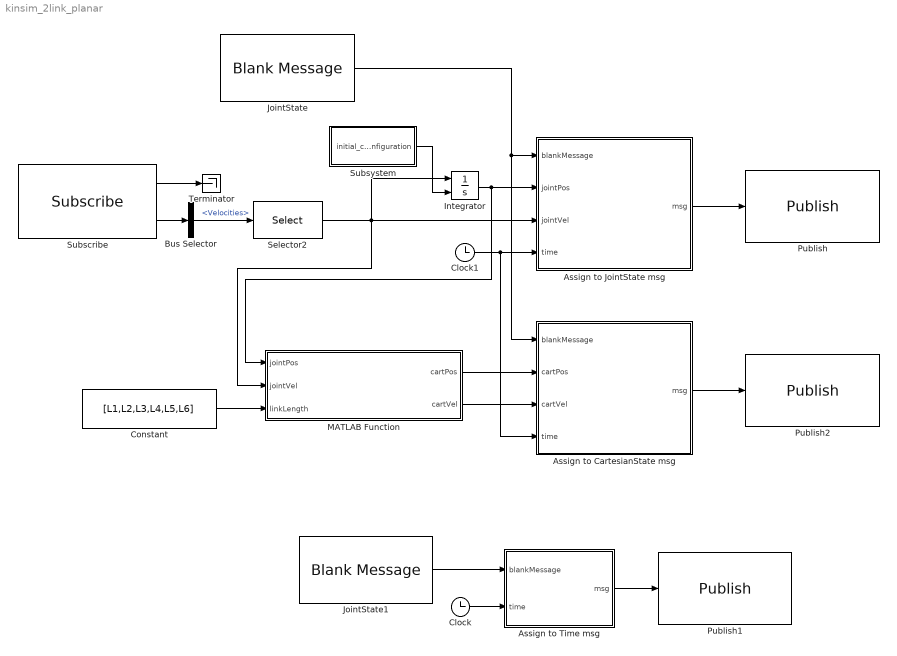
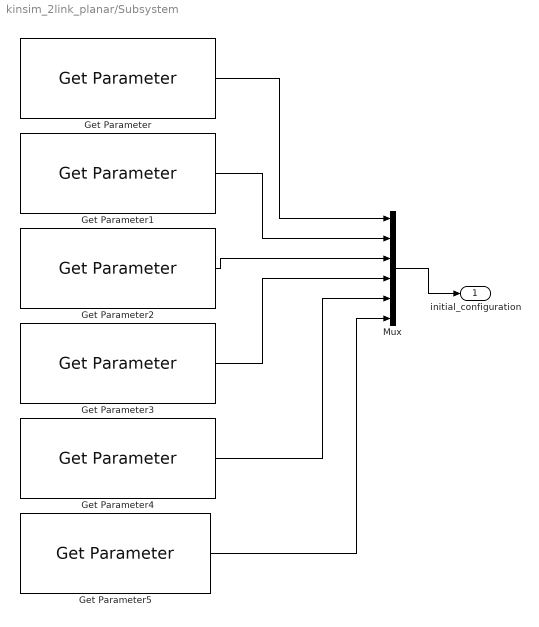
== matlab function kinsim_2link_planar/Assign to Time msg ==
function msg = assign_Time(blankMessage,time)
%#codegen

% Assign the output message to be the same with input blank message
msg = blankMessage;

% Convert and set time
msg.Clock_.Sec  = fix(time);
msg.Clock_.Nsec = fix((time-fix(time))*1e9);

== matlab function kinsim_2link_planar/Assign to JointState msg ==
function msg = assign_JointState(blankMessage,jointPos,jointVel,time)
%#codegen

% Assign the output message to be the same with input blank message
msg = blankMessage;

% Initialize time stamp
msg.Header.Stamp.Sec  = fix(time);
msg.Header.Stamp.Nsec = fix((time-fix(time))*1e9);

% Set the number of strings in the string array, and joint positions/velocities in the position/velocity array
numJoints = length(jointPos);
msg.Name_SL_Info.CurrentLength = uint32(numJoints);
msg.Position_SL_Info.CurrentLength = uint32(numJoints);
msg.Velocity_SL_Info.CurrentLength = uint32(numJoints);

% Set the individual components in the message arrays
strArrayToAssign = {'edo_joint_1', 'edo_joint_2', 'edo_joint_3', 'edo_joint_4', 'edo_joint_5', 'edo_joint_6'};

for idx=1:numJoints
    str = strArrayToAssign{idx};
    strLength = length(str);
    msg.Name(idx).Data(1:strLength) = uint8(str);
    msg.Name(idx).Data_SL_Info.CurrentLength = uint32(strLength);

    msg.Position(idx) = jointPos(idx);
    msg.Velocity(idx) = jointVel(idx);
end

== matlab function kinsim_2link_planar/MATLAB Function ==
function [cartPos, cartVel] = forward_kinematics_2link(jointPos,jointVel,linkLength)

cartPos = zeros(1,3);
cartVel = zeros(1,3);

L1 = linkLength(1);
L2 = linkLength(2);
L3 = linkLength(3);
L4 = linkLength(4);
L5 = linkLength(5);
L6 = linkLength(6);
q1 = jointPos(1);
q2 = jointPos(2);
q3 = jointPos(3);
q4 = jointPos(4);
q5 = jointPos(5);
q6 = jointPos(6);
qv1 = jointVel(1);
qv2 = jointVel(2);
qv3 = jointVel(3);
qv4 = jointVel(4);
qv5 = jointVel(5);
qv6 = jointVel(6);

% cartPos(1) = L1*cos(q1)+L2*cos(q1+q2)+L3*cos(q1+q2+q3)+L4*cos(q1+q2+q3+q4)+L5*cos(q1+q2+q3+q4+q5)+L6*cos(q1+q2+q3+q4+q5+q6);
% cartPos(2) = L1*sin(q1)+L2*sin(q1+q2)+L3*sin(q1+q2+q3)+L4*sin(q1+q2+q3+q4)+L5*sin(q1+q2+q3+q4+q5)+L6*sin(q1+q2+q3+q4+q5+q6);
% cartVel(1) = -L1*qv1*sin(q1)-L2*(qv1+qv2)*sin(q1+q2)-L3*(qv1+qv2+qv3)*sin(q1+q2+q3)-L4*(qv1+qv2+qv3+qv4)*sin(q1+q2+q3+q4)-L5*(qv1+qv2+qv3+qv4+qv5)*sin(q1+q2+q3+q4+q5)-L6*(qv1+qv2+qv3+qv4+qv5+qv6)*sin(q1+q2+q3+q4+q5+q6);
% cartVel(2) = L1*qv1*cos(q1)+L2*(qv1+qv2)*cos(q1+q2)+L3*(qv1+qv2+qv3)*cos(q1+q2+q3)+L4*(qv1+qv2+qv3+qv4)*cos(q1+q2+q3+q4)+L5*(qv1+qv2+qv3+qv4+qv5)*cos(q1+q2+q3+q4+q5)+L6*(qv1+qv2+qv3+qv4+qv5+qv6)*cos(q1+q2+q3+q4+q5+q6);

cartPos(1) = (L2*cos(q2)+L3*cos(q3)+L4*cos(q4)+L5*cos(q5)+L6*cos(q6))*cos(q1)
cartPos(2) = (L2*cos(q2)+L3*cos(q3)+L4*cos(q4)+L5*cos(q5)+L6*cos(q6))*sin(q1)
cartPos(3) = L1+L2*sin(q2)+L3*sin(q3)+L4*sin(q4)*L5*sin(q5)+L6*sin(q6)

cartVel(1) = -(L2*cos(q2)+L3*cos(q3)+L4*cos(q4)+L5*cos(q5)+L6*cos(q6))*sin(q1)-(L2*sin(q2)+L3*sin(q3)+L4*sin(q4)+L5*sin(q5)+L6*sin(q6))*cos(q1)
cartVel(2) = (L2*cos(q2)+L3*cos(q3)+L4*cos(q4)+L5*cos(q5)+L6*cos(q6))*cos(q1)-(L2*sin(q2)+L3*sin(q3)+L4*sin(q4)+L5*sin(q5)+L6*sin(q6))*sin(q1)
cartVel(3) = L1+L2*cos(q2)+L3*cos(q3)+L4*cos(q4)*L5*cos(q5)+L6*cos(q6)

== matlab function kinsim_2link_planar/Assign to CartesianState msg ==
function msg = assign_CartesianState(blankMessage,cartPos,cartVel,time)
%#codegen

% Assign the output message to be the same with input blank message
msg = blankMessage;

% Initialize time stamp
msg.Header.Stamp.Sec  = fix(time);
msg.Header.Stamp.Nsec = fix((time-fix(time))*1e9);

% Set the number of strings in the string array, and joint positions/velocities in the position/velocity array
numCoordinates = length(cartPos);
msg.Name_SL_Info.CurrentLength = uint32(numCoordinates);
msg.Position_SL_Info.CurrentLength = uint32(numCoordinates);
msg.Velocity_SL_Info.CurrentLength = uint32(numCoordinates);

% Set the individual components in the message arrays
strArrayToAssign = {'edo_joint_1', 'edo_joint_2', 'edo_joint_3', 'edo_joint_4', 'edo_joint_5', 'edo_joint_6'};

for idx=1:numCoordinates
    str = strArrayToAssign{idx};
    strLength = length(str);
    msg.Name(idx).Data(1:strLength) = uint8(str);
    msg.Name(idx).Data_SL_Info.CurrentLength = uint32(strLength);

    msg.Position(idx) = cartPos(idx);
    msg.Velocity(idx) = cartVel(idx);
end

//
// Academic License - for use in teaching, academic research, and meeting
// course requirements at degree granting institutions only.  Not for
// government, commercial, or other organizational use.
//
// File: kinsim_2link_planar.cpp
//
// Code generated for Simulink model 'kinsim_2link_planar'.
//
// Model version                  : 1.127
// Simulink Coder version         : 9.3 (R2020a) 18-Nov-2019
// C/C++ source code generated on : Sun May 17 14:56:55 2020
//
// Target selection: ert.tlc
// Embedded hardware selection: Generic->Unspecified (assume 32-bit Generic)
// Code generation objectives: Unspecified
// Validation result: Not run
//
#include "kinsim_2link_planar.h"
#include "kinsim_2link_planar_private.h"

// Block signals (default storage)
B_kinsim_2link_planar_T kinsim_2link_planar_B;

// Continuous states
X_kinsim_2link_planar_T kinsim_2link_planar_X;

// Block states (default storage)
DW_kinsim_2link_planar_T kinsim_2link_planar_DW;

// Real-time model
RT_MODEL_kinsim_2link_planar_T kinsim_2link_planar_M_ =
  RT_MODEL_kinsim_2link_planar_T();
RT_MODEL_kinsim_2link_planar_T *const kinsim_2link_planar_M =
  &kinsim_2link_planar_M_;

// Forward declaration for local functions
static void kinsim_2link_pl_SystemCore_step(boolean_T *varargout_1, real_T
  varargout_2_Positions[128], uint32_T *varargout_2_Positions_SL_Info_C,
  uint32_T *varargout_2_Positions_SL_Info_R, real_T varargout_2_Velocities[128],
  uint32_T *varargout_2_Velocities_SL_Info_, uint32_T
  *varargout_2_Velocities_SL_Inf_0, real_T varargout_2_Accelerations[128],
  uint32_T *varargout_2_Accelerations_SL_In, uint32_T
  *varargout_2_Accelerations_SL__0, real_T varargout_2_Effort[128], uint32_T
  *varargout_2_Effort_SL_Info_Curr, uint32_T *varargout_2_Effort_SL_Info_Rece,
  real_T *varargout_2_TimeFromStart_Sec, real_T *varargout_2_TimeFromStart_Nsec);
static void matlabCodegenHandle_matlab_li5a(ros_slros_internal_block_GetP_T *obj);
static void matlabCodegenHandle_matlabC_li5(ros_slros_internal_block_Subs_T *obj);
static void matlabCodegenHandle_matlabCodeg(ros_slros_internal_block_Publ_T *obj);

//
// This function updates continuous states using the ODE3 fixed-step
// solver algorithm
//
static void rt_ertODEUpdateContinuousStates(RTWSolverInfo *si )
{
  // Solver Matrices
  static const real_T rt_ODE3_A[3] = {
    1.0/2.0, 3.0/4.0, 1.0
  };

  static const real_T rt_ODE3_B[3][3] = {
    { 1.0/2.0, 0.0, 0.0 },

    { 0.0, 3.0/4.0, 0.0 },

    { 2.0/9.0, 1.0/3.0, 4.0/9.0 }
  };

  time_T t = rtsiGetT(si);
  time_T tnew = rtsiGetSolverStopTime(si);
  time_T h = rtsiGetStepSize(si);
  real_T *x = rtsiGetContStates(si);
  ODE3_IntgData *id = static_cast<ODE3_IntgData *>(rtsiGetSolverData(si));
  real_T *y = id->y;
  real_T *f0 = id->f[0];
  real_T *f1 = id->f[1];
  real_T *f2 = id->f[2];
  real_T hB[3];
  int_T i;
  int_T nXc = 6;
  rtsiSetSimTimeStep(si,MINOR_TIME_STEP);

  // Save the state values at time t in y, we'll use x as ynew.
  (void) memcpy(y, x,
                static_cast<uint_T>(nXc)*sizeof(real_T));

  // Assumes that rtsiSetT and ModelOutputs are up-to-date
  // f0 = f(t,y)
  rtsiSetdX(si, f0);
  kinsim_2link_planar_derivatives();

  // f(:,2) = feval(odefile, t + hA(1), y + f*hB(:,1), args(:)(*));
  hB[0] = h * rt_ODE3_B[0][0];
  for (i = 0; i < nXc; i++) {
    x[i] = y[i] + (f0[i]*hB[0]);
  }

  rtsiSetT(si, t + h*rt_ODE3_A[0]);
  rtsiSetdX(si, f1);
  kinsim_2link_planar_step();
  kinsim_2link_planar_derivatives();

  // f(:,3) = feval(odefile, t + hA(2), y + f*hB(:,2), args(:)(*));
  for (i = 0; i <= 1; i++) {
    hB[i] = h * rt_ODE3_B[1][i];
  }

  for (i = 0; i < nXc; i++) {
    x[i] = y[i] + (f0[i]*hB[0] + f1[i]*hB[1]);
  }

  rtsiSetT(si, t + h*rt_ODE3_A[1]);
  rtsiSetdX(si, f2);
  kinsim_2link_planar_step();
  kinsim_2link_planar_derivatives();

  // tnew = t + hA(3);
  // ynew = y + f*hB(:,3);
  for (i = 0; i <= 2; i++) {
    hB[i] = h * rt_ODE3_B[2][i];
  }

  for (i = 0; i < nXc; i++) {
    x[i] = y[i] + (f0[i]*hB[0] + f1[i]*hB[1] + f2[i]*hB[2]);
  }

  rtsiSetT(si, tnew);
  rtsiSetSimTimeStep(si,MAJOR_TIME_STEP);
}

static void kinsim_2link_pl_SystemCore_step(boolean_T *varargout_1, real_T
  varargout_2_Positions[128], uint32_T *varargout_2_Positions_SL_Info_C,
  uint32_T *varargout_2_Positions_SL_Info_R, real_T varargout_2_Velocities[128],
  uint32_T *varargout_2_Velocities_SL_Info_, uint32_T
  *varargout_2_Velocities_SL_Inf_0, real_T varargout_2_Accelerations[128],
  uint32_T *varargout_2_Accelerations_SL_In, uint32_T
  *varargout_2_Accelerations_SL__0, real_T varargout_2_Effort[128], uint32_T
  *varargout_2_Effort_SL_Info_Curr, uint32_T *varargout_2_Effort_SL_Info_Rece,
  real_T *varargout_2_TimeFromStart_Sec, real_T *varargout_2_TimeFromStart_Nsec)
{
  *varargout_1 = Sub_kinsim_2link_planar_16.getLatestMessage
    (&kinsim_2link_planar_B.b_varargout_2);
  *varargout_2_Positions_SL_Info_C =
    kinsim_2link_planar_B.b_varargout_2.Positions_SL_Info.CurrentLength;
  *varargout_2_Positions_SL_Info_R =
    kinsim_2link_planar_B.b_varargout_2.Positions_SL_Info.ReceivedLength;
  *varargout_2_Velocities_SL_Info_ =
    kinsim_2link_planar_B.b_varargout_2.Velocities_SL_Info.CurrentLength;
  *varargout_2_Velocities_SL_Inf_0 =
    kinsim_2link_planar_B.b_varargout_2.Velocities_SL_Info.ReceivedLength;
  *varargout_2_Accelerations_SL_In =
    kinsim_2link_planar_B.b_varargout_2.Accelerations_SL_Info.CurrentLength;
  *varargout_2_Accelerations_SL__0 =
    kinsim_2link_planar_B.b_varargout_2.Accelerations_SL_Info.ReceivedLength;
  memcpy(&varargout_2_Positions[0],
         &kinsim_2link_planar_B.b_varargout_2.Positions[0], sizeof(real_T) << 7U);
  memcpy(&varargout_2_Velocities[0],
         &kinsim_2link_planar_B.b_varargout_2.Velocities[0], sizeof(real_T) <<
         7U);
  memcpy(&varargout_2_Accelerations[0],
         &kinsim_2link_planar_B.b_varargout_2.Accelerations[0], sizeof(real_T) <<
         7U);
  memcpy(&varargout_2_Effort[0], &kinsim_2link_planar_B.b_varargout_2.Effort[0],
         sizeof(real_T) << 7U);
  *varargout_2_Effort_SL_Info_Curr =
    kinsim_2link_planar_B.b_varargout_2.Effort_SL_Info.CurrentLength;
  *varargout_2_Effort_SL_Info_Rece =
    kinsim_2link_planar_B.b_varargout_2.Effort_SL_Info.ReceivedLength;
  *varargout_2_TimeFromStart_Sec =
    kinsim_2link_planar_B.b_varargout_2.TimeFromStart.Sec;
  *varargout_2_TimeFromStart_Nsec =
    kinsim_2link_planar_B.b_varargout_2.TimeFromStart.Nsec;
}

static void matlabCodegenHandle_matlab_li5a(ros_slros_internal_block_GetP_T *obj)
{
  if (!obj->matlabCodegenIsDeleted) {
    obj->matlabCodegenIsDeleted = true;
  }
}

static void matlabCodegenHandle_matlabC_li5(ros_slros_internal_block_Subs_T *obj)
{
  if (!obj->matlabCodegenIsDeleted) {
    obj->matlabCodegenIsDeleted = true;
  }
}

static void matlabCodegenHandle_matlabCodeg(ros_slros_internal_block_Publ_T *obj)
{
  if (!obj->matlabCodegenIsDeleted) {
    obj->matlabCodegenIsDeleted = true;
  }
}

// Model step function
void kinsim_2link_planar_step(void)
{
  uint32_T b_varargout_2_Positions_SL_Info;
  uint32_T b_varargout_2_Positions_SL_In_0;
  uint32_T b_varargout_2_Velocities_SL_Inf;
  uint32_T b_varargout_2_Velocities_SL_I_0;
  uint32_T b_varargout_2_Accelerations_SL_;
  uint32_T b_varargout_2_Accelerations_S_0;
  uint32_T b_varargout_2_Effort_SL_Info_Cu;
  uint32_T b_varargout_2_Effort_SL_Info_Re;
  boolean_T b_varargout_1;
  int32_T i;
  real_T tmp;
  real_T tmp_0;
  real_T tmp_1;
  static const char_T h[11] = { 'e', 'd', 'o', '_', 'j', 'o', 'i', 'n', 't', '_',
    '1' };

  static const char_T i_0[11] = { 'e', 'd', 'o', '_', 'j', 'o', 'i', 'n', 't',
    '_', '2' };

  static const char_T j[11] = { 'e', 'd', 'o', '_', 'j', 'o', 'i', 'n', 't', '_',
    '3' };

  static const char_T k[11] = { 'e', 'd', 'o', '_', 'j', 'o', 'i', 'n', 't', '_',
    '4' };

  static const char_T l[11] = { 'e', 'd', 'o', '_', 'j', 'o', 'i', 'n', 't', '_',
    '5' };

  static const char_T m[11] = { 'e', 'd', 'o', '_', 'j', 'o', 'i', 'n', 't', '_',
    '6' };

  if (rtmIsMajorTimeStep(kinsim_2link_planar_M)) {
    // set solver stop time
    rtsiSetSolverStopTime(&kinsim_2link_planar_M->solverInfo,
                          ((kinsim_2link_planar_M->Timing.clockTick0+1)*
      kinsim_2link_planar_M->Timing.stepSize0));
  }                                    // end MajorTimeStep

  // Update absolute time of base rate at minor time step
  if (rtmIsMinorTimeStep(kinsim_2link_planar_M)) {
    kinsim_2link_planar_M->Timing.t[0] = rtsiGetT
      (&kinsim_2link_planar_M->solverInfo);
  }

  // MATLABSystem: '<S11>/Get Parameter'
  ParamGet_kinsim_2link_planar_61.get_parameter(&kinsim_2link_planar_B.value);

  // MATLABSystem: '<S11>/Get Parameter1'
  ParamGet_kinsim_2link_planar_65.get_parameter(&kinsim_2link_planar_B.value_m);

  // MATLABSystem: '<S11>/Get Parameter2'
  ParamGet_kinsim_2link_planar_81.get_parameter(&kinsim_2link_planar_B.value_c);

  // MATLABSystem: '<S11>/Get Parameter3'
  ParamGet_kinsim_2link_planar_82.get_parameter(&kinsim_2link_planar_B.value_k);

  // MATLABSystem: '<S11>/Get Parameter4'
  ParamGet_kinsim_2link_planar_83.get_parameter(&kinsim_2link_planar_B.value_cx);

  // MATLABSystem: '<S11>/Get Parameter5'
  ParamGet_kinsim_2link_planar_84.get_parameter(&kinsim_2link_planar_B.value_b);

  // Integrator: '<Root>/Integrator' incorporates:
  //   MATLABSystem: '<S11>/Get Parameter'
  //   MATLABSystem: '<S11>/Get Parameter1'
  //   MATLABSystem: '<S11>/Get Parameter2'
  //   MATLABSystem: '<S11>/Get Parameter3'
  //   MATLABSystem: '<S11>/Get Parameter4'
  //   MATLABSystem: '<S11>/Get Parameter5'

  if (kinsim_2link_planar_DW.Integrator_IWORK != 0) {
    kinsim_2link_planar_X.Integrator_CSTATE[0] = kinsim_2link_planar_B.value;
    kinsim_2link_planar_X.Integrator_CSTATE[1] = kinsim_2link_planar_B.value_m;
    kinsim_2link_planar_X.Integrator_CSTATE[2] = kinsim_2link_planar_B.value_c;
    kinsim_2link_planar_X.Integrator_CSTATE[3] = kinsim_2link_planar_B.value_k;
    kinsim_2link_planar_X.Integrator_CSTATE[4] = kinsim_2link_planar_B.value_cx;
    kinsim_2link_planar_X.Integrator_CSTATE[5] = kinsim_2link_planar_B.value_b;
  }

  if (rtmIsMajorTimeStep(kinsim_2link_planar_M)) {
    // Outputs for Atomic SubSystem: '<Root>/Subscribe'
    // MATLABSystem: '<S10>/SourceBlock' incorporates:
    //   Inport: '<S12>/In1'

    kinsim_2link_pl_SystemCore_step(&b_varargout_1,
      kinsim_2link_planar_B.b_varargout_2_Positions,
      &b_varargout_2_Positions_SL_Info, &b_varargout_2_Positions_SL_In_0,
      kinsim_2link_planar_B.b_varargout_2_Velocities,
      &b_varargout_2_Velocities_SL_Inf, &b_varargout_2_Velocities_SL_I_0,
      kinsim_2link_planar_B.b_varargout_2_Accelerations,
      &b_varargout_2_Accelerations_SL_, &b_varargout_2_Accelerations_S_0,
      kinsim_2link_planar_B.b_varargout_2_Effort,
      &b_varargout_2_Effort_SL_Info_Cu, &b_varargout_2_Effort_SL_Info_Re,
      &kinsim_2link_planar_B.value, &kinsim_2link_planar_B.value_m);

    // Outputs for Enabled SubSystem: '<S10>/Enabled Subsystem' incorporates:
    //   EnablePort: '<S12>/Enable'

    if (b_varargout_1) {
      kinsim_2link_planar_B.In1.Positions_SL_Info.CurrentLength =
        b_varargout_2_Positions_SL_Info;
      kinsim_2link_planar_B.In1.Positions_SL_Info.ReceivedLength =
        b_varargout_2_Positions_SL_In_0;
      kinsim_2link_planar_B.In1.Velocities_SL_Info.CurrentLength =
        b_varargout_2_Velocities_SL_Inf;
      kinsim_2link_planar_B.In1.Velocities_SL_Info.ReceivedLength =
        b_varargout_2_Velocities_SL_I_0;
      kinsim_2link_planar_B.In1.Accelerations_SL_Info.CurrentLength =
        b_varargout_2_Accelerations_SL_;
      kinsim_2link_planar_B.In1.Accelerations_SL_Info.ReceivedLength =
        b_varargout_2_Accelerations_S_0;
      memcpy(&kinsim_2link_planar_B.In1.Positions[0],
             &kinsim_2link_planar_B.b_varargout_2_Positions[0], sizeof(real_T) <<
             7U);
      memcpy(&kinsim_2link_planar_B.In1.Velocities[0],
             &kinsim_2link_planar_B.b_varargout_2_Velocities[0], sizeof(real_T) <<
             7U);
      memcpy(&kinsim_2link_planar_B.In1.Accelerations[0],
             &kinsim_2link_planar_B.b_varargout_2_Accelerations[0], sizeof
             (real_T) << 7U);
      memcpy(&kinsim_2link_planar_B.In1.Effort[0],
             &kinsim_2link_planar_B.b_varargout_2_Effort[0], sizeof(real_T) <<
             7U);
      kinsim_2link_planar_B.In1.Effort_SL_Info.CurrentLength =
        b_varargout_2_Effort_SL_Info_Cu;
      kinsim_2link_planar_B.In1.Effort_SL_Info.ReceivedLength =
        b_varargout_2_Effort_SL_Info_Re;
      kinsim_2link_planar_B.In1.TimeFromStart.Sec = kinsim_2link_planar_B.value;
      kinsim_2link_planar_B.In1.TimeFromStart.Nsec =
        kinsim_2link_planar_B.value_m;
    }

    // End of MATLABSystem: '<S10>/SourceBlock'
    // End of Outputs for SubSystem: '<S10>/Enabled Subsystem'
    // End of Outputs for SubSystem: '<Root>/Subscribe'
  }

  // Clock: '<Root>/Clock1' incorporates:
  //   Clock: '<Root>/Clock'

  kinsim_2link_planar_B.value = kinsim_2link_planar_M->Timing.t[0];

  // MATLAB Function: '<Root>/Assign to CartesianState msg' incorporates:
  //   Clock: '<Root>/Clock1'
  //   Constant: '<S4>/Constant'

  kinsim_2link_planar_B.msg_d = kinsim_2link_planar_P.Constant_Value;
  if (kinsim_2link_planar_B.value < 0.0) {
    // MATLAB Function: '<Root>/Assign to JointState msg'
    kinsim_2link_planar_B.value_m = ceil(kinsim_2link_planar_B.value);
  } else {
    // MATLAB Function: '<Root>/Assign to JointState msg'
    kinsim_2link_planar_B.value_m = floor(kinsim_2link_planar_B.value);
  }

  kinsim_2link_planar_B.msg_d.Header.Stamp.Sec = kinsim_2link_planar_B.value_m;
  kinsim_2link_planar_B.value_c = (kinsim_2link_planar_B.value -
    kinsim_2link_planar_B.value_m) * 1.0E+9;
  if (kinsim_2link_planar_B.value_c < 0.0) {
    // MATLAB Function: '<Root>/Assign to JointState msg'
    kinsim_2link_planar_B.value_c = ceil(kinsim_2link_planar_B.value_c);
  } else {
    // MATLAB Function: '<Root>/Assign to JointState msg'
    kinsim_2link_planar_B.value_c = floor(kinsim_2link_planar_B.value_c);
  }

  kinsim_2link_planar_B.msg_d.Header.Stamp.Nsec = kinsim_2link_planar_B.value_c;
  kinsim_2link_planar_B.msg_d.Name_SL_Info.CurrentLength = 3U;
  kinsim_2link_planar_B.msg_d.Position_SL_Info.CurrentLength = 3U;
  kinsim_2link_planar_B.msg_d.Velocity_SL_Info.CurrentLength = 3U;
  kinsim_2link_planar_B.msg_d.Name[0].Data_SL_Info.CurrentLength = 11U;

  // MATLAB Function: '<Root>/MATLAB Function' incorporates:
  //   Integrator: '<Root>/Integrator'

  kinsim_2link_planar_B.value_k = cos(kinsim_2link_planar_X.Integrator_CSTATE[0]);
  kinsim_2link_planar_B.value_cx = cos(kinsim_2link_planar_X.Integrator_CSTATE[1]);
  kinsim_2link_planar_B.value_b = sin(kinsim_2link_planar_X.Integrator_CSTATE[0]);
  kinsim_2link_planar_B.d2 = sin(kinsim_2link_planar_X.Integrator_CSTATE[1]);
  kinsim_2link_planar_B.d4 = sin(kinsim_2link_planar_X.Integrator_CSTATE[2]);
  kinsim_2link_planar_B.d_p = cos(kinsim_2link_planar_X.Integrator_CSTATE[3]);
  kinsim_2link_planar_B.d6 = cos(kinsim_2link_planar_X.Integrator_CSTATE[2]);
  kinsim_2link_planar_B.d1 = sin(kinsim_2link_planar_X.Integrator_CSTATE[3]);
  kinsim_2link_planar_B.d3 = 4.967757600021511E+15 *
    kinsim_2link_planar_B.value_b;
  kinsim_2link_planar_B.d5 = kinsim_2link_planar_B.value_k *
    kinsim_2link_planar_B.value_cx - kinsim_2link_planar_B.d3 *
    kinsim_2link_planar_B.d2 / 8.1129638414606682E+31;
  tmp_1 = 4.967757600021511E+15 * kinsim_2link_planar_B.value_cx;
  kinsim_2link_planar_B.d7 = tmp_1 * kinsim_2link_planar_B.value_b /
    8.1129638414606682E+31 + kinsim_2link_planar_B.value_k *
    kinsim_2link_planar_B.d2;
  kinsim_2link_planar_B.d10 = 4.967757600021511E+15 * kinsim_2link_planar_B.d4;
  kinsim_2link_planar_B.d11 = 4.967757600021511E+15 * kinsim_2link_planar_B.d6;
  tmp = kinsim_2link_planar_B.d5 * kinsim_2link_planar_B.d10 /
    8.1129638414606682E+31;
  tmp_0 = kinsim_2link_planar_B.d7 * kinsim_2link_planar_B.d11 /
    8.1129638414606682E+31;
  kinsim_2link_planar_B.d8 = (tmp - kinsim_2link_planar_B.value_b) + tmp_0;
  kinsim_2link_planar_B.d9 = (4.967757600021511E+15 * cos
    (kinsim_2link_planar_X.Integrator_CSTATE[1]) * sin
    (kinsim_2link_planar_X.Integrator_CSTATE[0]) / 8.1129638414606682E+31 + cos
    (kinsim_2link_planar_X.Integrator_CSTATE[0]) * sin
    (kinsim_2link_planar_X.Integrator_CSTATE[1])) * sin
    (kinsim_2link_planar_X.Integrator_CSTATE[2]) - (cos
    (kinsim_2link_planar_X.Integrator_CSTATE[0]) * cos
    (kinsim_2link_planar_X.Integrator_CSTATE[1]) - 4.967757600021511E+15 * sin
    (kinsim_2link_planar_X.Integrator_CSTATE[0]) * sin
    (kinsim_2link_planar_X.Integrator_CSTATE[1]) / 8.1129638414606682E+31) * cos
    (kinsim_2link_planar_X.Integrator_CSTATE[2]);
  kinsim_2link_planar_B.d12 = 87.0 * cos
    (kinsim_2link_planar_X.Integrator_CSTATE[4]);
  kinsim_2link_planar_B.d13 = 87.0 * sin
    (kinsim_2link_planar_X.Integrator_CSTATE[4]);

  // MATLAB Function: '<Root>/Assign to CartesianState msg' incorporates:
  //   MATLAB Function: '<Root>/MATLAB Function'

  kinsim_2link_planar_B.msg_d.Position[0] = (((((((kinsim_2link_planar_B.d5 *
    kinsim_2link_planar_B.d4 + kinsim_2link_planar_B.d3 / 8.1129638414606682E+31)
    - kinsim_2link_planar_B.d8 * (4.967757600021511E+15 *
    kinsim_2link_planar_B.d_p) / 8.1129638414606682E+31) +
    (kinsim_2link_planar_B.d7 * kinsim_2link_planar_B.d4 -
     kinsim_2link_planar_B.d5 * kinsim_2link_planar_B.d6) *
    (4.967757600021511E+15 * kinsim_2link_planar_B.d1) / 8.1129638414606682E+31)
    + kinsim_2link_planar_B.d7 * kinsim_2link_planar_B.d6) *
    kinsim_2link_planar_B.d12 / 500.0 + ((((21.0 * kinsim_2link_planar_B.value_k
    * kinsim_2link_planar_B.value_cx / 100.0 - kinsim_2link_planar_B.d5 *
    (8.8199044272416644E+65 * kinsim_2link_planar_B.d4) / 3.2910091146424121E+66)
    - 4.3815147249893147E+81 * kinsim_2link_planar_B.value_b /
    2.6699837949011376E+98) - 1.0432290960045173E+17 *
    kinsim_2link_planar_B.value_b * kinsim_2link_planar_B.d2 /
    8.1129638414606682E+33) - kinsim_2link_planar_B.d8 * (4.3219491120187149E+17
    * kinsim_2link_planar_B.d_p) / 4.0564819207303341E+34)) +
    (kinsim_2link_planar_B.d8 * kinsim_2link_planar_B.d1 +
     kinsim_2link_planar_B.d9 * kinsim_2link_planar_B.d_p) *
    kinsim_2link_planar_B.d13 / 500.0) + kinsim_2link_planar_B.d9 *
    (4.3219491120187149E+17 * kinsim_2link_planar_B.d1) / 4.0564819207303341E+34)
    - kinsim_2link_planar_B.d7 * (8.8199044272416644E+65 *
    kinsim_2link_planar_B.d6) / 3.2910091146424121E+66;

  // MATLAB Function: '<Root>/MATLAB Function' incorporates:
  //   Integrator: '<Root>/Integrator'

  kinsim_2link_planar_B.d3 = 4.967757600021511E+15 *
    kinsim_2link_planar_B.value_k;
  kinsim_2link_planar_B.d5 = kinsim_2link_planar_B.d3 *
    kinsim_2link_planar_B.value_cx / 8.1129638414606682E+31 -
    kinsim_2link_planar_B.value_b * kinsim_2link_planar_B.d2;
  kinsim_2link_planar_B.d7 = kinsim_2link_planar_B.d3 * kinsim_2link_planar_B.d2
    / 8.1129638414606682E+31 + kinsim_2link_planar_B.value_cx *
    kinsim_2link_planar_B.value_b;
  kinsim_2link_planar_B.d10 = kinsim_2link_planar_B.d7 *
    kinsim_2link_planar_B.d10 / 8.1129638414606682E+31;
  kinsim_2link_planar_B.d11 = kinsim_2link_planar_B.d5 *
    kinsim_2link_planar_B.d11 / 8.1129638414606682E+31;
  kinsim_2link_planar_B.d8 = kinsim_2link_planar_B.d10 -
    kinsim_2link_planar_B.d11;
  kinsim_2link_planar_B.d14 = (4.967757600021511E+15 * cos
    (kinsim_2link_planar_X.Integrator_CSTATE[0]) * cos
    (kinsim_2link_planar_X.Integrator_CSTATE[1]) / 8.1129638414606682E+31 - sin
    (kinsim_2link_planar_X.Integrator_CSTATE[0]) * sin
    (kinsim_2link_planar_X.Integrator_CSTATE[1])) * sin
    (kinsim_2link_planar_X.Integrator_CSTATE[2]) + (4.967757600021511E+15 * cos
    (kinsim_2link_planar_X.Integrator_CSTATE[0]) * sin
    (kinsim_2link_planar_X.Integrator_CSTATE[1]) / 8.1129638414606682E+31 + cos
    (kinsim_2link_planar_X.Integrator_CSTATE[1]) * sin
    (kinsim_2link_planar_X.Integrator_CSTATE[0])) * cos
    (kinsim_2link_planar_X.Integrator_CSTATE[2]);

  // MATLAB Function: '<Root>/Assign to CartesianState msg' incorporates:
  //   Integrator: '<Root>/Integrator'
  //   MATLAB Function: '<Root>/MATLAB Function'

  kinsim_2link_planar_B.msg_d.Velocity[0] = (kinsim_2link_planar_B.d8 *
    kinsim_2link_planar_B.d_p + (kinsim_2link_planar_B.d5 *
    kinsim_2link_planar_B.d4 + kinsim_2link_planar_B.d7 *
    kinsim_2link_planar_B.d6) * kinsim_2link_planar_B.d1) *
    kinsim_2link_planar_B.d12 / 500.0 - (kinsim_2link_planar_B.d8 *
    (4.967757600021511E+15 * sin(kinsim_2link_planar_X.Integrator_CSTATE[3])) /
    8.1129638414606682E+31 - kinsim_2link_planar_B.d14 * (4.967757600021511E+15 *
    cos(kinsim_2link_planar_X.Integrator_CSTATE[3])) / 8.1129638414606682E+31) *
    kinsim_2link_planar_B.d13 / 500.0;
  kinsim_2link_planar_B.msg_d.Name[1].Data_SL_Info.CurrentLength = 11U;

  // MATLAB Function: '<Root>/MATLAB Function' incorporates:
  //   Integrator: '<Root>/Integrator'

  kinsim_2link_planar_B.d8 = ((4.967757600021511E+15 * cos
    (kinsim_2link_planar_X.Integrator_CSTATE[0]) * sin
    (kinsim_2link_planar_X.Integrator_CSTATE[1]) / 8.1129638414606682E+31 + cos
    (kinsim_2link_planar_X.Integrator_CSTATE[1]) * sin
    (kinsim_2link_planar_X.Integrator_CSTATE[0])) * (4.967757600021511E+15 * sin
    (kinsim_2link_planar_X.Integrator_CSTATE[2])) / 8.1129638414606682E+31 + cos
    (kinsim_2link_planar_X.Integrator_CSTATE[0])) - (4.967757600021511E+15 * cos
    (kinsim_2link_planar_X.Integrator_CSTATE[0]) * cos
    (kinsim_2link_planar_X.Integrator_CSTATE[1]) / 8.1129638414606682E+31 - sin
    (kinsim_2link_planar_X.Integrator_CSTATE[0]) * sin
    (kinsim_2link_planar_X.Integrator_CSTATE[1])) * (4.967757600021511E+15 * cos
    (kinsim_2link_planar_X.Integrator_CSTATE[2])) / 8.1129638414606682E+31;

  // MATLAB Function: '<Root>/Assign to CartesianState msg' incorporates:
  //   Integrator: '<Root>/Integrator'
  //   MATLAB Function: '<Root>/MATLAB Function'

  kinsim_2link_planar_B.msg_d.Position[1] = (((((((4.3815147249893147E+81 *
    kinsim_2link_planar_B.value_k / 2.6699837949011376E+98 -
    kinsim_2link_planar_B.d7 * (8.8199044272416644E+65 * sin
    (kinsim_2link_planar_X.Integrator_CSTATE[2])) / 3.2910091146424121E+66) -
    (kinsim_2link_planar_B.d14 * kinsim_2link_planar_B.d_p -
     ((kinsim_2link_planar_B.d10 + kinsim_2link_planar_B.value_k) -
      kinsim_2link_planar_B.d11) * kinsim_2link_planar_B.d1) *
    kinsim_2link_planar_B.d13 / 500.0) + 1.0432290960045173E+17 *
    kinsim_2link_planar_B.value_k * kinsim_2link_planar_B.d2 /
    8.1129638414606682E+33) + 21.0 * kinsim_2link_planar_B.value_cx *
    kinsim_2link_planar_B.value_b / 100.0) - kinsim_2link_planar_B.d14 *
    (4.3219491120187149E+17 * sin(kinsim_2link_planar_X.Integrator_CSTATE[3])) /
    4.0564819207303341E+34) - ((kinsim_2link_planar_B.d8 *
    (4.967757600021511E+15 * cos(kinsim_2link_planar_X.Integrator_CSTATE[3])) /
    8.1129638414606682E+31 + (kinsim_2link_planar_B.d14 * (4.967757600021511E+15
    * sin(kinsim_2link_planar_X.Integrator_CSTATE[3])) / 8.1129638414606682E+31
    + (kinsim_2link_planar_B.d3 / 8.1129638414606682E+31 -
       kinsim_2link_planar_B.d7 * kinsim_2link_planar_B.d4))) +
    kinsim_2link_planar_B.d5 * kinsim_2link_planar_B.d6) *
    kinsim_2link_planar_B.d12 / 500.0) - kinsim_2link_planar_B.d8 *
    (4.3219491120187149E+17 * cos(kinsim_2link_planar_X.Integrator_CSTATE[3])) /
    4.0564819207303341E+34) + kinsim_2link_planar_B.d5 * (8.8199044272416644E+65
    * cos(kinsim_2link_planar_X.Integrator_CSTATE[2])) / 3.2910091146424121E+66;

  // MATLAB Function: '<Root>/MATLAB Function'
  kinsim_2link_planar_B.value_k = tmp + tmp_0;

  // MATLAB Function: '<Root>/Assign to CartesianState msg' incorporates:
  //   Integrator: '<Root>/Integrator'
  //   MATLAB Function: '<Root>/MATLAB Function'

  kinsim_2link_planar_B.msg_d.Velocity[1] = (kinsim_2link_planar_B.value_k *
    (4.967757600021511E+15 * sin(kinsim_2link_planar_X.Integrator_CSTATE[3])) /
    8.1129638414606682E+31 + kinsim_2link_planar_B.d9 * (4.967757600021511E+15 *
    cos(kinsim_2link_planar_X.Integrator_CSTATE[3])) / 8.1129638414606682E+31) *
    kinsim_2link_planar_B.d13 / 500.0 + (kinsim_2link_planar_B.d9 *
    kinsim_2link_planar_B.d1 - kinsim_2link_planar_B.value_k *
    kinsim_2link_planar_B.d_p) * kinsim_2link_planar_B.d12 / 500.0;
  for (i = 0; i < 11; i++) {
    kinsim_2link_planar_B.b.f1[i] = h[i];
    kinsim_2link_planar_B.c.f1[i] = i_0[i];
    kinsim_2link_planar_B.d.f1[i] = j[i];
    kinsim_2link_planar_B.msg_d.Name[0].Data[i] = static_cast<uint8_T>
      (kinsim_2link_planar_B.b.f1[i]);
    kinsim_2link_planar_B.msg_d.Name[1].Data[i] = static_cast<uint8_T>
      (kinsim_2link_planar_B.c.f1[i]);
    kinsim_2link_planar_B.msg_d.Name[2].Data[i] = static_cast<uint8_T>
      (kinsim_2link_planar_B.d.f1[i]);
  }

  kinsim_2link_planar_B.msg_d.Name[2].Data_SL_Info.CurrentLength = 11U;

  // MATLAB Function: '<Root>/MATLAB Function' incorporates:
  //   Integrator: '<Root>/Integrator'

  kinsim_2link_planar_B.value_k = (4.967757600021511E+15 * cos
    (kinsim_2link_planar_X.Integrator_CSTATE[1]) * cos
    (kinsim_2link_planar_X.Integrator_CSTATE[2]) / 8.1129638414606682E+31 -
    4.967757600021511E+15 * sin(kinsim_2link_planar_X.Integrator_CSTATE[1]) *
    sin(kinsim_2link_planar_X.Integrator_CSTATE[2]) / 8.1129638414606682E+31) +
    6.123233995736766E-17;
  kinsim_2link_planar_B.value_b = cos(kinsim_2link_planar_X.Integrator_CSTATE[1])
    * sin(kinsim_2link_planar_X.Integrator_CSTATE[2]) + cos
    (kinsim_2link_planar_X.Integrator_CSTATE[2]) * sin
    (kinsim_2link_planar_X.Integrator_CSTATE[1]);

  // MATLAB Function: '<Root>/Assign to CartesianState msg' incorporates:
  //   Integrator: '<Root>/Integrator'
  //   MATLAB Function: '<Root>/MATLAB Function'

  kinsim_2link_planar_B.msg_d.Position[2] = ((((((8.8199044272416644E+65 *
    kinsim_2link_planar_B.d2 * kinsim_2link_planar_B.d4 / 3.2910091146424121E+66
    - 8.8199044272416644E+65 * kinsim_2link_planar_B.value_cx *
    kinsim_2link_planar_B.d6 / 3.2910091146424121E+66) - 21.0 *
    kinsim_2link_planar_B.d2 / 100.0) - ((tmp_1 * kinsim_2link_planar_B.d6 /
    8.1129638414606682E+31 - 4.967757600021511E+15 * kinsim_2link_planar_B.d2 *
    kinsim_2link_planar_B.d4 / 8.1129638414606682E+31) + 6.123233995736766E-17) *
    (4.3219491120187149E+17 * cos(kinsim_2link_planar_X.Integrator_CSTATE[3])) /
    4.0564819207303341E+34) - (((kinsim_2link_planar_B.value_k *
    (4.967757600021511E+15 * cos(kinsim_2link_planar_X.Integrator_CSTATE[3])) /
    8.1129638414606682E+31 + (kinsim_2link_planar_B.d2 *
    kinsim_2link_planar_B.d4 - kinsim_2link_planar_B.value_cx *
    kinsim_2link_planar_B.d6)) - (kinsim_2link_planar_B.value_cx *
    kinsim_2link_planar_B.d4 + kinsim_2link_planar_B.d6 *
    kinsim_2link_planar_B.d2) * (4.967757600021511E+15 * sin
    (kinsim_2link_planar_X.Integrator_CSTATE[3])) / 8.1129638414606682E+31) +
    3.749399456654644E-33) * kinsim_2link_planar_B.d12 / 500.0) +
    kinsim_2link_planar_B.value_b * (4.3219491120187149E+17 * sin
    (kinsim_2link_planar_X.Integrator_CSTATE[3])) / 4.0564819207303341E+34) +
    (kinsim_2link_planar_B.value_k * kinsim_2link_planar_B.d1 +
     kinsim_2link_planar_B.value_b * kinsim_2link_planar_B.d_p) *
    kinsim_2link_planar_B.d13 / 500.0) + 0.337;

  // MATLAB Function: '<Root>/MATLAB Function' incorporates:
  //   Integrator: '<Root>/Integrator'

  kinsim_2link_planar_B.value_k = 4.967757600021511E+15 * cos
    (kinsim_2link_planar_X.Integrator_CSTATE[1]) * cos
    (kinsim_2link_planar_X.Integrator_CSTATE[2]) / 8.1129638414606682E+31 -
    4.967757600021511E+15 * sin(kinsim_2link_planar_X.Integrator_CSTATE[1]) *
    sin(kinsim_2link_planar_X.Integrator_CSTATE[2]) / 8.1129638414606682E+31;

  // MATLAB Function: '<Root>/Assign to CartesianState msg' incorporates:
  //   Integrator: '<Root>/Integrator'
  //   MATLAB Function: '<Root>/MATLAB Function'

  kinsim_2link_planar_B.msg_d.Velocity[2] = (kinsim_2link_planar_B.value_k *
    (4.967757600021511E+15 * sin(kinsim_2link_planar_X.Integrator_CSTATE[3])) /
    8.1129638414606682E+31 + kinsim_2link_planar_B.value_b *
    (4.967757600021511E+15 * cos(kinsim_2link_planar_X.Integrator_CSTATE[3])) /
    8.1129638414606682E+31) * kinsim_2link_planar_B.d13 / 500.0 -
    (kinsim_2link_planar_B.value_k * kinsim_2link_planar_B.d_p -
     kinsim_2link_planar_B.value_b * kinsim_2link_planar_B.d1) *
    kinsim_2link_planar_B.d12 / 500.0;

  // Outputs for Atomic SubSystem: '<Root>/Publish2'
  // MATLABSystem: '<S9>/SinkBlock'
  Pub_kinsim_2link_planar_79.publish(&kinsim_2link_planar_B.msg_d);

  // End of Outputs for SubSystem: '<Root>/Publish2'

  // MATLAB Function: '<Root>/Assign to JointState msg' incorporates:
  //   Constant: '<S4>/Constant'
  //   Integrator: '<Root>/Integrator'

  kinsim_2link_planar_B.msg_d = kinsim_2link_planar_P.Constant_Value;
  kinsim_2link_planar_B.msg_d.Header.Stamp.Sec = kinsim_2link_planar_B.value_m;
  kinsim_2link_planar_B.msg_d.Header.Stamp.Nsec = kinsim_2link_planar_B.value_c;
  kinsim_2link_planar_B.msg_d.Name_SL_Info.CurrentLength = 6U;
  kinsim_2link_planar_B.msg_d.Position_SL_Info.CurrentLength = 6U;
  kinsim_2link_planar_B.msg_d.Velocity_SL_Info.CurrentLength = 6U;
  kinsim_2link_planar_B.msg_d.Name[0].Data_SL_Info.CurrentLength = 11U;
  kinsim_2link_planar_B.msg_d.Position[0] =
    kinsim_2link_planar_X.Integrator_CSTATE[0];
  kinsim_2link_planar_B.msg_d.Velocity[0] =
    kinsim_2link_planar_B.In1.Velocities[1];
  kinsim_2link_planar_B.msg_d.Name[1].Data_SL_Info.CurrentLength = 11U;
  kinsim_2link_planar_B.msg_d.Position[1] =
    kinsim_2link_planar_X.Integrator_CSTATE[1];
  kinsim_2link_planar_B.msg_d.Velocity[1] =
    kinsim_2link_planar_B.In1.Velocities[2];
  kinsim_2link_planar_B.msg_d.Name[2].Data_SL_Info.CurrentLength = 11U;
  kinsim_2link_planar_B.msg_d.Position[2] =
    kinsim_2link_planar_X.Integrator_CSTATE[2];
  kinsim_2link_planar_B.msg_d.Velocity[2] =
    kinsim_2link_planar_B.In1.Velocities[3];
  kinsim_2link_planar_B.msg_d.Name[3].Data_SL_Info.CurrentLength = 11U;
  kinsim_2link_planar_B.msg_d.Position[3] =
    kinsim_2link_planar_X.Integrator_CSTATE[3];
  kinsim_2link_planar_B.msg_d.Velocity[3] =
    kinsim_2link_planar_B.In1.Velocities[4];
  kinsim_2link_planar_B.msg_d.Name[4].Data_SL_Info.CurrentLength = 11U;
  kinsim_2link_planar_B.msg_d.Position[4] =
    kinsim_2link_planar_X.Integrator_CSTATE[4];
  kinsim_2link_planar_B.msg_d.Velocity[4] =
    kinsim_2link_planar_B.In1.Velocities[5];
  for (i = 0; i < 11; i++) {
    kinsim_2link_planar_B.b.f1[i] = h[i];
    kinsim_2link_planar_B.c.f1[i] = i_0[i];
    kinsim_2link_planar_B.d.f1[i] = j[i];
    kinsim_2link_planar_B.e.f1[i] = k[i];
    kinsim_2link_planar_B.f.f1[i] = l[i];
    kinsim_2link_planar_B.g.f1[i] = m[i];
    kinsim_2link_planar_B.msg_d.Name[0].Data[i] = static_cast<uint8_T>
      (kinsim_2link_planar_B.b.f1[i]);
    kinsim_2link_planar_B.msg_d.Name[1].Data[i] = static_cast<uint8_T>
      (kinsim_2link_planar_B.c.f1[i]);
    kinsim_2link_planar_B.msg_d.Name[2].Data[i] = static_cast<uint8_T>
      (kinsim_2link_planar_B.d.f1[i]);
    kinsim_2link_planar_B.msg_d.Name[3].Data[i] = static_cast<uint8_T>
      (kinsim_2link_planar_B.e.f1[i]);
    kinsim_2link_planar_B.msg_d.Name[4].Data[i] = static_cast<uint8_T>
      (kinsim_2link_planar_B.f.f1[i]);
    kinsim_2link_planar_B.msg_d.Name[5].Data[i] = static_cast<uint8_T>
      (kinsim_2link_planar_B.g.f1[i]);
  }

  kinsim_2link_planar_B.msg_d.Name[5].Data_SL_Info.CurrentLength = 11U;
  kinsim_2link_planar_B.msg_d.Position[5] =
    kinsim_2link_planar_X.Integrator_CSTATE[5];
  kinsim_2link_planar_B.msg_d.Velocity[5] =
    kinsim_2link_planar_B.In1.Velocities[6];

  // Outputs for Atomic SubSystem: '<Root>/Publish'
  // MATLABSystem: '<S7>/SinkBlock'
  Pub_kinsim_2link_planar_22.publish(&kinsim_2link_planar_B.msg_d);

  // End of Outputs for SubSystem: '<Root>/Publish'

  // MATLAB Function: '<Root>/Assign to Time msg'
  if (kinsim_2link_planar_B.value < 0.0) {
    kinsim_2link_planar_B.value_m = ceil(kinsim_2link_planar_B.value);
  } else {
    kinsim_2link_planar_B.value_m = floor(kinsim_2link_planar_B.value);
  }

  kinsim_2link_planar_B.msg_l.Clock_.Sec = kinsim_2link_planar_B.value_m;
  kinsim_2link_planar_B.value_c = (kinsim_2link_planar_B.value -
    kinsim_2link_planar_B.value_m) * 1.0E+9;
  if (kinsim_2link_planar_B.value_c < 0.0) {
    kinsim_2link_planar_B.msg_l.Clock_.Nsec = ceil(kinsim_2link_planar_B.value_c);
  } else {
    kinsim_2link_planar_B.msg_l.Clock_.Nsec = floor
      (kinsim_2link_planar_B.value_c);
  }

  // End of MATLAB Function: '<Root>/Assign to Time msg'

  // Outputs for Atomic SubSystem: '<Root>/Publish1'
  // MATLABSystem: '<S8>/SinkBlock'
  Pub_kinsim_2link_planar_50.publish(&kinsim_2link_planar_B.msg_l);

  // End of Outputs for SubSystem: '<Root>/Publish1'
  if (rtmIsMajorTimeStep(kinsim_2link_planar_M)) {
    // Update for Integrator: '<Root>/Integrator'
    kinsim_2link_planar_DW.Integrator_IWORK = 0;
  }                                    // end MajorTimeStep

  if (rtmIsMajorTimeStep(kinsim_2link_planar_M)) {
    rt_ertODEUpdateContinuousStates(&kinsim_2link_planar_M->solverInfo);

    // Update absolute time for base rate
    // The "clockTick0" counts the number of times the code of this task has
    //  been executed. The absolute time is the multiplication of "clockTick0"
    //  and "Timing.stepSize0". Size of "clockTick0" ensures timer will not
    //  overflow during the application lifespan selected.

    ++kinsim_2link_planar_M->Timing.clockTick0;
    kinsim_2link_planar_M->Timing.t[0] = rtsiGetSolverStopTime
      (&kinsim_2link_planar_M->solverInfo);

    {
      // Update absolute timer for sample time: [0.05s, 0.0s]
      // The "clockTick1" counts the number of times the code of this task has
      //  been executed. The resolution of this integer timer is 0.05, which is the step size
      //  of the task. Size of "clockTick1" ensures timer will not overflow during the
      //  application lifespan selected.

      kinsim_2link_planar_M->Timing.clockTick1++;
    }
  }                                    // end MajorTimeStep
}
